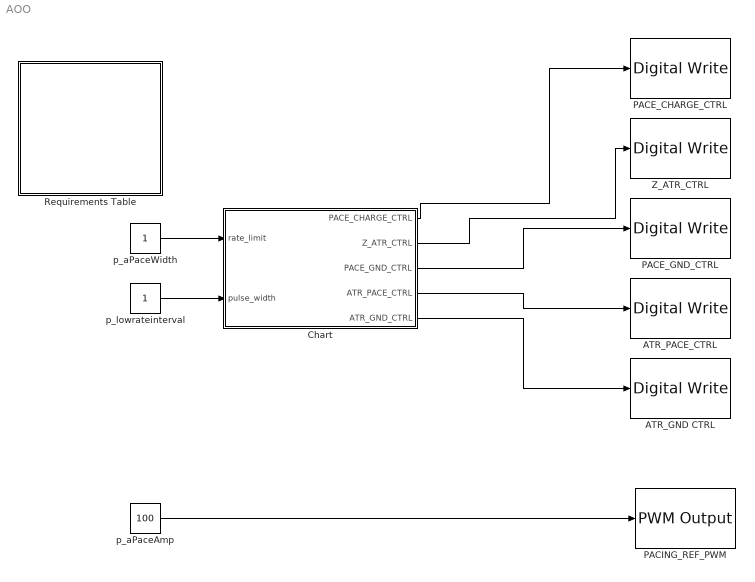
== stateflow chart AOO/Chart ==
  state Charging_Discharging
    entry:
    ATR_PACE_CTRL = false
    PACE_CHARGE_CTRL = true
    ATR_GND_CTRL = true
    PACE_GND_CTRL = true
    Z_ATR_CTRL=false
  state Pace_Heart
    entry:
    ATR_PACE_CTRL = true
    PACE_CHARGE_CTRL = false
    PACE_GND_CTRL = true
    ATR_GND_CTRL = false
  (default) -> Charging_Discharging
  Charging_Discharging -> Pace_Heart : after(((1/rate_limit)*60000)-pulse_width,msec)
  Pace_Heart -> Charging_Discharging : after(pulse_width,msec)
  data: rate_limit input; pulse_width input; PACE_CHARGE_CTRL output boolean; Z_ATR_CTRL output boolean; PACE_GND_CTRL output boolean; ATR_PACE_CTRL output boolean; ATR_GND_CTRL output boolean

== stateflow chart AOO/Requirements Table ==
  (default) -> (junction 1073741860)
  (junction 1073741860) -> (junction 1073741861) : { % SF_REQ_REV_07 }
  (junction 1073741861) -> (junction 1073741863) : { % HEADER_ASSIGNMENTS  }
  (junction 1073741863) -> (junction 1073741865) : { % START_A_4 }
  (junction 1073741865) -> (junction 1073741867) : { }
  (junction 1073741867) -> (junction 1073741869)
  (junction 1073741869) -> (junction 1073741871) : { }
  (junction 1073741871) -> (junction 1073741873) : { % END_A_4 }
  (junction 1073741873) -> (junction 1073741898) : { % START_R_1 }
  (junction 1073741898) -> (junction 1073741900) : { }
  (junction 1073741900) -> (junction 1073741902) : {   }
  (junction 1073741902) -> (junction 1073741904) : { }
  (junction 1073741904) -> (junction 1073741906) : { % END_R_1 }

/*
 * Academic License - for use in teaching, academic research, and meeting
 * course requirements at degree granting institutions only.  Not for
 * government, commercial, or other organizational use.
 *
 * File: AOO.c
 *
 * Code generated for Simulink model 'AOO'.
 *
 * Model version                  : 1.11
 * Simulink Coder version         : 9.7 (R2022a) 13-Nov-2021
 * C/C++ source code generated on : Mon Oct  3 16:29:12 2022
 *
 * Target selection: ert.tlc
 * Embedded hardware selection: ARM Compatible->ARM Cortex
 * Code generation objectives: Unspecified
 * Validation result: Not run
 */

#include "AOO.h"
#include "rtwtypes.h"
#include <math.h>
#include "AOO_types.h"

/* Named constants for Chart: '<Root>/Chart' */
#define AOO_IN_Charging_Discharging    ((uint8_T)1U)
#define AOO_IN_Pace_Heart              ((uint8_T)2U)

/* Block signals (default storage) */
B_AOO_T AOO_B;

/* Block states (default storage) */
DW_AOO_T AOO_DW;

/* Real-time model */
static RT_MODEL_AOO_T AOO_M_;
RT_MODEL_AOO_T *const AOO_M = &AOO_M_;

/* Model step function */
void AOO_step(void)
{
  boolean_T rtb_ATR_GND_CTRL;
  boolean_T rtb_ATR_PACE_CTRL;
  boolean_T rtb_PACE_CHARGE_CTRL;

  /* Chart: '<Root>/Chart' incorporates:
   *  Constant: '<Root>/p_aPaceWidth'
   *  Constant: '<Root>/p_lowrateinterval'
   */
  if (AOO_DW.temporalCounter_i1 < MAX_uint32_T) {
    AOO_DW.temporalCounter_i1++;
  }

  if (AOO_DW.is_active_c1_AOO == 0U) {
    AOO_DW.is_active_c1_AOO = 1U;
    AOO_DW.is_c1_AOO = AOO_IN_Charging_Discharging;
    AOO_DW.temporalCounter_i1 = 0U;
    rtb_ATR_PACE_CTRL = false;
    rtb_PACE_CHARGE_CTRL = true;
    rtb_ATR_GND_CTRL = true;
    AOO_B.Z_ATR_CTRL = false;
  } else if (AOO_DW.is_c1_AOO == AOO_IN_Charging_Discharging) {
    rtb_ATR_PACE_CTRL = false;
    rtb_PACE_CHARGE_CTRL = true;
    rtb_ATR_GND_CTRL = true;
    AOO_B.Z_ATR_CTRL = false;
    if (AOO_DW.temporalCounter_i1 >= (uint32_T)ceil(1.0 /
         AOO_P.p_lowrateinterval_Value * 60000.0 - AOO_P.p_aPaceWidth_Value)) {
      AOO_DW.is_c1_AOO = AOO_IN_Pace_Heart;
      AOO_DW.temporalCounter_i1 = 0U;
      rtb_ATR_PACE_CTRL = true;
      rtb_PACE_CHARGE_CTRL = false;
      rtb_ATR_GND_CTRL = false;
    }
  } else {
    /* case IN_Pace_Heart: */
    rtb_ATR_PACE_CTRL = true;
    rtb_PACE_CHARGE_CTRL = false;
    rtb_ATR_GND_CTRL = false;
    if (AOO_DW.temporalCounter_i1 >= (uint32_T)ceil(AOO_P.p_aPaceWidth_Value)) {
      AOO_DW.is_c1_AOO = AOO_IN_Charging_Discharging;
      AOO_DW.temporalCounter_i1 = 0U;
      rtb_ATR_PACE_CTRL = false;
      rtb_PACE_CHARGE_CTRL = true;
      rtb_ATR_GND_CTRL = true;
      AOO_B.Z_ATR_CTRL = false;
    }
  }

  /* End of Chart: '<Root>/Chart' */

  /* MATLABSystem: '<Root>/ATR_GND CTRL' */
  MW_digitalIO_write(AOO_DW.obj_e.MW_DIGITALIO_HANDLE, rtb_ATR_GND_CTRL);

  /* MATLABSystem: '<Root>/ATR_PACE_CTRL' */
  MW_digitalIO_write(AOO_DW.obj_l.MW_DIGITALIO_HANDLE, rtb_ATR_PACE_CTRL);

  /* MATLABSystem: '<Root>/PACE_CHARGE_CTRL' */
  MW_digitalIO_write(AOO_DW.obj_n.MW_DIGITALIO_HANDLE, rtb_PACE_CHARGE_CTRL);

  /* MATLABSystem: '<Root>/PACE_GND_CTRL' */
  MW_digitalIO_write(AOO_DW.obj_k.MW_DIGITALIO_HANDLE, true);

  /* MATLABSystem: '<Root>/Z_ATR_CTRL' */
  MW_digitalIO_write(AOO_DW.obj.MW_DIGITALIO_HANDLE, AOO_B.Z_ATR_CTRL);

  /* MATLABSystem: '<Root>/PACING_REF_PWM' incorporates:
   *  Constant: '<Root>/p_aPaceAmp'
   */
  MW_PWM_SetDutyCycle(AOO_DW.obj_j.MW_PWM_HANDLE, AOO_P.p_aPaceAmp_Value);
}
